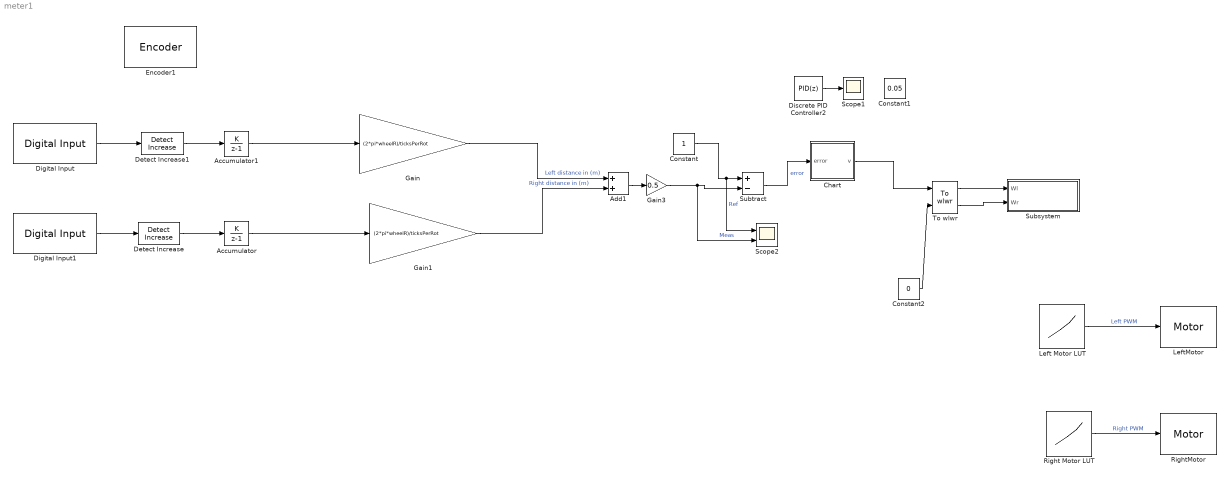
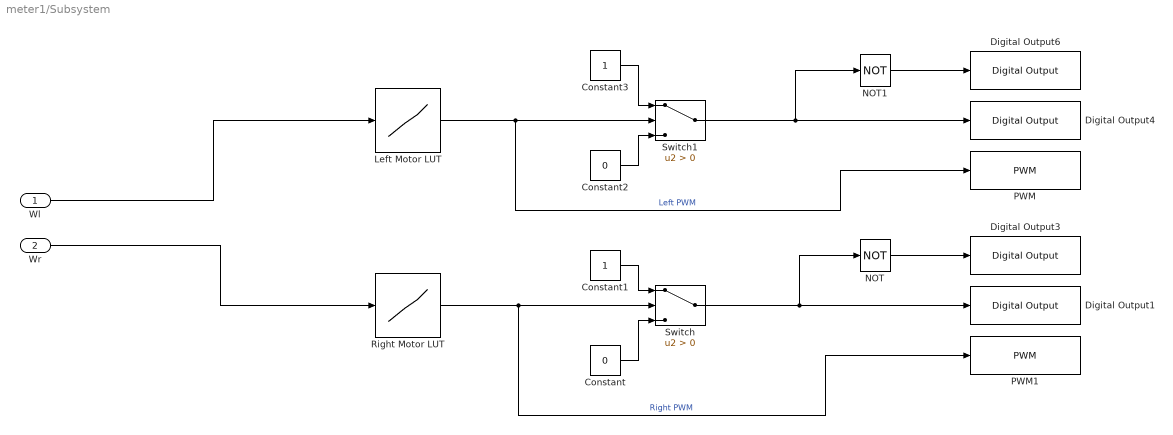
== stateflow chart meter1/Chart ==
  state StartVelocity
    entry:
    v= 0.1
  state ApproachVelocity
    entry:
    v = 0.04
  state Stop
    entry:
    v=0
  (default) -> StartVelocity
  StartVelocity -> ApproachVelocity : [error <0.15]
  ApproachVelocity -> Stop : [error <= 0]
  data: error input; v output

/*
 * meter1.c
 *
 * Academic License - for use in teaching, academic research, and meeting
 * course requirements at degree granting institutions only.  Not for
 * government, commercial, or other organizational use.
 *
 * Code generation for model "meter1".
 *
 * Model version              : 5.25
 * Simulink Coder version : 9.9 (R2023a) 19-Nov-2022
 * C source code generated on : Tue Oct 10 23:23:02 2023
 *
 * Target selection: ert.tlc
 * Note: GRT includes extra infrastructure and instrumentation for prototyping
 * Embedded hardware selection: ARM Compatible->ARM Cortex
 * Code generation objectives: Unspecified
 * Validation result: Not run
 */

#include "meter1.h"
#include "rtwtypes.h"
#include "meter1_types.h"
#include "meter1_private.h"
#include <math.h>
#include <string.h>

/* Named constants for Chart: '<Root>/Chart' */
#define meter1_IN_ApproachVelocity     ((uint8_T)1U)
#define meter1_IN_NO_ACTIVE_CHILD      ((uint8_T)0U)
#define meter1_IN_StartVelocity        ((uint8_T)2U)
#define meter1_IN_Stop                 ((uint8_T)3U)

/* Block states (default storage) */
DW_meter1_T meter1_DW;

/* Real-time model */
static RT_MODEL_meter1_T meter1_M_;
RT_MODEL_meter1_T *const meter1_M = &meter1_M_;
static void rate_scheduler(void);
uint32_T plook_u32d_binckan(real_T u, const real_T bp[], uint32_T maxIndex)
{
  uint32_T bpIndex;

  /* Prelookup - Index only
     Index Search method: 'binary'
     Interpolation method: 'Use nearest'
     Extrapolation method: 'Clip'
     Use previous index: 'off'
     Use last breakpoint for index at or above upper limit: 'on'
     Remove protection against out-of-range input in generated code: 'off'
   */
  if (u <= bp[0U]) {
    bpIndex = 0U;
  } else if (u < bp[maxIndex]) {
    bpIndex = binsearch_u32d(u, bp, maxIndex >> 1U, maxIndex);
    if ((bpIndex < maxIndex) && (bp[bpIndex + 1U] - u <= u - bp[bpIndex])) {
      bpIndex++;
    }
  } else {
    bpIndex = maxIndex;
  }

  return bpIndex;
}

uint32_T binsearch_u32d(real_T u, const real_T bp[], uint32_T startIndex,
  uint32_T maxIndex)
{
  uint32_T bpIdx;
  uint32_T bpIndex;
  uint32_T iRght;

  /* Binary Search */
  bpIdx = startIndex;
  bpIndex = 0U;
  iRght = maxIndex;
  while (iRght - bpIndex > 1U) {
    if (u < bp[bpIdx]) {
      iRght = bpIdx;
    } else {
      bpIndex = bpIdx;
    }

    bpIdx = (iRght + bpIndex) >> 1U;
  }

  return bpIndex;
}

/*
 *         This function updates active task flag for each subrate.
 *         The function is called at model base rate, hence the
 *         generated code self-manages all its subrates.
 */
static void rate_scheduler(void)
{
  /* Compute which subrates run during the next base time step.  Subrates
   * are an integer multiple of the base rate counter.  Therefore, the subtask
   * counter is reset when it reaches its limit (zero means run).
   */
  (meter1_M->Timing.TaskCounters.TID[1])++;
  if ((meter1_M->Timing.TaskCounters.TID[1]) > 9) {/* Sample time: [0.1s, 0.0s] */
    meter1_M->Timing.TaskCounters.TID[1] = 0;
  }
}

real_T rt_roundd_snf(real_T u)
{
  real_T y;
  if (fabs(u) < 4.503599627370496E+15) {
    if (u >= 0.5) {
      y = floor(u + 0.5);
    } else if (u > -0.5) {
      y = u * 0.0;
    } else {
      y = ceil(u - 0.5);
    }
  } else {
    y = u;
  }

  return y;
}

/* Model step function */
void meter1_step(void)
{
  codertarget_arduinobase_inter_T *obj;
  real_T rtb_LeftPWM;
  real_T rtb_Switch1;
  real_T rtb_error;
  real_T rtb_v;
  real_T tmp;
  uint32_T rtb_Meas;
  int8_T tmp_0;
  int8_T tmp_1;
  uint8_T tmp_2;
  boolean_T rtb_DigitalInput;
  boolean_T rtb_DigitalInput1;
  if (meter1_M->Timing.TaskCounters.TID[1] == 0) {
    /* Gain: '<Root>/Gain3' incorporates:
     *  DiscreteIntegrator: '<Root>/Accumulator'
     *  DiscreteIntegrator: '<Root>/Accumulator1'
     *  Gain: '<Root>/Gain'
     *  Gain: '<Root>/Gain1'
     *  Sum: '<Root>/Add1'
     */
    rtb_Meas = (uint32_T)(uint16_T)((uint32_T)meter1_P.Gain_Gain *
      meter1_DW.Accumulator1_DSTATE + (uint32_T)meter1_P.Gain1_Gain *
      meter1_DW.Accumulator_DSTATE) * meter1_P.Gain3_Gain;

    /* Sum: '<Root>/Subtract' incorporates:
     *  Constant: '<Root>/Constant'
     *  Gain: '<Root>/Gain3'
     */
    rtb_error = meter1_P.Constant_Value_h - (real_T)rtb_Meas *
      9.3132257461547852E-10;

    /* Chart: '<Root>/Chart' */
    if (meter1_DW.is_active_c3_meter1 == 0U) {
      meter1_DW.is_active_c3_meter1 = 1U;
      meter1_DW.is_c3_meter1 = meter1_IN_StartVelocity;
      rtb_v = 0.1;
    } else {
      switch (meter1_DW.is_c3_meter1) {
       case meter1_IN_ApproachVelocity:
        rtb_v = 0.04;
        if (rtb_error <= 0.0) {
          meter1_DW.is_c3_meter1 = meter1_IN_Stop;
          rtb_v = 0.0;
        }
        break;

       case meter1_IN_StartVelocity:
        rtb_v = 0.1;
        if (rtb_error < 0.15) {
          meter1_DW.is_c3_meter1 = meter1_IN_ApproachVelocity;
          rtb_v = 0.04;
        }
        break;

       default:
        /* case IN_Stop: */
        rtb_v = 0.0;
        break;
      }
    }

    /* End of Chart: '<Root>/Chart' */

    /* Gain: '<S9>/vtow' */
    rtb_error = 1.0 / meter1_P.wheelR;

    /* Lookup_n-D: '<S8>/Left Motor LUT' incorporates:
     *  Constant: '<Root>/Constant2'
     *  Gain: '<S9>/change parameters'
     *  Gain: '<S9>/vtow'
     *  SignalConversion generated from: '<S9>/change parameters'
     */
    rtb_LeftPWM = meter1_P.InputPWM[plook_u32d_binckan
      ((meter1_P.changeparameters_Gain[0] * rtb_v +
        meter1_P.changeparameters_Gain[2] * meter1_P.Constant2_Value_c) *
       rtb_error, meter1_P.WheelSpeed, 172U)];

    /* Switch: '<S8>/Switch1' incorporates:
     *  Constant: '<S8>/Constant2'
     *  Constant: '<S8>/Constant3'
     */
    if (rtb_LeftPWM > meter1_P.Switch1_Threshold) {
      rtb_Switch1 = meter1_P.Constant3_Value;
    } else {
      rtb_Switch1 = meter1_P.Constant2_Value;
    }

    /* End of Switch: '<S8>/Switch1' */

    /* MATLABSystem: '<S8>/Digital Output4' */
    tmp = rt_roundd_snf(rtb_Switch1);
    if (tmp < 256.0) {
      if (tmp >= 0.0) {
        tmp_2 = (uint8_T)tmp;
      } else {
        tmp_2 = 0U;
      }
    } else {
      tmp_2 = MAX_uint8_T;
    }

    writeDigitalPin(13, tmp_2);

    /* End of MATLABSystem: '<S8>/Digital Output4' */

    /* MATLABSystem: '<S8>/Digital Output6' incorporates:
     *  Logic: '<S8>/NOT1'
     */
    writeDigitalPin(12, (uint8_T)!(rtb_Switch1 != 0.0));

    /* MATLABSystem: '<S8>/PWM' */
    obj = &meter1_DW.obj_i;
    obj->PWMDriverObj.MW_PWM_HANDLE = MW_PWM_GetHandle(9U);
    if (!(rtb_LeftPWM <= 255.0)) {
      rtb_LeftPWM = 255.0;
    }

    if (!(rtb_LeftPWM >= 0.0)) {
      rtb_LeftPWM = 0.0;
    }

    MW_PWM_SetDutyCycle(meter1_DW.obj_i.PWMDriverObj.MW_PWM_HANDLE, rtb_LeftPWM);

    /* End of MATLABSystem: '<S8>/PWM' */

    /* Lookup_n-D: '<S8>/Right Motor LUT' incorporates:
     *  Constant: '<Root>/Constant2'
     *  Gain: '<S9>/change parameters'
     *  Gain: '<S9>/vtow'
     *  SignalConversion generated from: '<S9>/change parameters'
     */
    rtb_v = meter1_P.InputPWM[plook_u32d_binckan
      ((meter1_P.changeparameters_Gain[1] * rtb_v +
        meter1_P.changeparameters_Gain[3] * meter1_P.Constant2_Value_c) *
       rtb_error, meter1_P.WheelSpeed, 172U)];

    /* Switch: '<S8>/Switch' incorporates:
     *  Constant: '<S8>/Constant'
     *  Constant: '<S8>/Constant1'
     */
    if (rtb_v > meter1_P.Switch_Threshold) {
      rtb_LeftPWM = meter1_P.Constant1_Value;
    } else {
      rtb_LeftPWM = meter1_P.Constant_Value;
    }

    /* End of Switch: '<S8>/Switch' */

    /* MATLABSystem: '<S8>/Digital Output1' */
    rtb_error = rt_roundd_snf(rtb_LeftPWM);
    if (rtb_error < 256.0) {
      if (rtb_error >= 0.0) {
        tmp_2 = (uint8_T)rtb_error;
      } else {
        tmp_2 = 0U;
      }
    } else {
      tmp_2 = MAX_uint8_T;
    }

    writeDigitalPin(8, tmp_2);

    /* End of MATLABSystem: '<S8>/Digital Output1' */

    /* MATLABSystem: '<S8>/Digital Output3' incorporates:
     *  Logic: '<S8>/NOT'
     */
    writeDigitalPin(11, (uint8_T)!(rtb_LeftPWM != 0.0));

    /* MATLABSystem: '<S8>/PWM1' */
    obj = &meter1_DW.obj_ez;
    obj->PWMDriverObj.MW_PWM_HANDLE = MW_PWM_GetHandle(10U);
    if (!(rtb_v <= 255.0)) {
      rtb_v = 255.0;
    }

    if (!(rtb_v >= 0.0)) {
      rtb_v = 0.0;
    }

    MW_PWM_SetDutyCycle(meter1_DW.obj_ez.PWMDriverObj.MW_PWM_HANDLE, rtb_v);

    /* End of MATLABSystem: '<S8>/PWM1' */
  }

  /* Gain: '<S40>/Integral Gain' */
  rtb_error = meter1_P.DiscretePIDController2_I * 0.0;

  /* Gain: '<S46>/Filter Coefficient' incorporates:
   *  DiscreteIntegrator: '<S38>/Filter'
   *  Gain: '<S37>/Derivative Gain'
   *  Sum: '<S38>/SumD'
   */
  rtb_v = (meter1_P.DiscretePIDController2_D * 0.0 - meter1_DW.Filter_DSTATE) *
    meter1_P.DiscretePIDController2_N;

  /* Sum: '<S52>/Sum' incorporates:
   *  DiscreteIntegrator: '<S43>/Integrator'
   *  Gain: '<S48>/Proportional Gain'
   */
  rtb_LeftPWM = (meter1_P.DiscretePIDController2_P * 0.0 +
                 meter1_DW.Integrator_DSTATE) + rtb_v;

  /* DeadZone: '<S36>/DeadZone' incorporates:
   *  Saturate: '<S50>/Saturation'
   */
  if (rtb_LeftPWM > meter1_P.DiscretePIDController2_UpperSat) {
    rtb_Switch1 = rtb_LeftPWM - meter1_P.DiscretePIDController2_UpperSat;
    rtb_LeftPWM = meter1_P.DiscretePIDController2_UpperSat;
  } else {
    if (rtb_LeftPWM >= meter1_P.DiscretePIDController2_LowerSat) {
      rtb_Switch1 = 0.0;
    } else {
      rtb_Switch1 = rtb_LeftPWM - meter1_P.DiscretePIDController2_LowerSat;
    }

    if (rtb_LeftPWM < meter1_P.DiscretePIDController2_LowerSat) {
      rtb_LeftPWM = meter1_P.DiscretePIDController2_LowerSat;
    }
  }

  /* End of DeadZone: '<S36>/DeadZone' */
  if (meter1_M->Timing.TaskCounters.TID[1] == 0) {
    /* MATLABSystem: '<Root>/Digital Input1' */
    if (meter1_DW.obj.SampleTime != meter1_P.DigitalInput1_SampleTime) {
      meter1_DW.obj.SampleTime = meter1_P.DigitalInput1_SampleTime;
    }

    rtb_DigitalInput1 = readDigitalPin(3);

    /* MATLABSystem: '<Root>/Digital Input' */
    if (meter1_DW.obj_p.SampleTime != meter1_P.DigitalInput_SampleTime) {
      meter1_DW.obj_p.SampleTime = meter1_P.DigitalInput_SampleTime;
    }

    rtb_DigitalInput = readDigitalPin(2);

    /* Update for DiscreteIntegrator: '<Root>/Accumulator1' incorporates:
     *  MATLABSystem: '<Root>/Digital Input'
     *  RelationalOperator: '<S3>/FixPt Relational Operator'
     *  UnitDelay: '<S3>/Delay Input1'
     */
    meter1_DW.Accumulator1_DSTATE = (uint8_T)((uint32_T)((int32_T)
      rtb_DigitalInput > (int32_T)meter1_DW.DelayInput1_DSTATE_m) +
      meter1_DW.Accumulator1_DSTATE);

    /* Update for DiscreteIntegrator: '<Root>/Accumulator' incorporates:
     *  MATLABSystem: '<Root>/Digital Input1'
     *  RelationalOperator: '<S2>/FixPt Relational Operator'
     *  UnitDelay: '<S2>/Delay Input1'
     */
    meter1_DW.Accumulator_DSTATE = (uint8_T)((uint32_T)((int32_T)
      rtb_DigitalInput1 > (int32_T)meter1_DW.DelayInput1_DSTATE) +
      meter1_DW.Accumulator_DSTATE);
  }

  /* Switch: '<S34>/Switch1' incorporates:
   *  Constant: '<S34>/Clamping_zero'
   *  Constant: '<S34>/Constant'
   *  Constant: '<S34>/Constant2'
   *  RelationalOperator: '<S34>/fix for DT propagation issue'
   */
  if (rtb_Switch1 > meter1_P.Clamping_zero_Value) {
    tmp_0 = meter1_P.Constant_Value_f;
  } else {
    tmp_0 = meter1_P.Constant2_Value_o;
  }

  /* Switch: '<S34>/Switch2' incorporates:
   *  Constant: '<S34>/Clamping_zero'
   *  Constant: '<S34>/Constant3'
   *  Constant: '<S34>/Constant4'
   *  RelationalOperator: '<S34>/fix for DT propagation issue1'
   */
  if (rtb_error > meter1_P.Clamping_zero_Value) {
    tmp_1 = meter1_P.Constant3_Value_m;
  } else {
    tmp_1 = meter1_P.Constant4_Value;
  }

  /* Switch: '<S34>/Switch' incorporates:
   *  Constant: '<S34>/Clamping_zero'
   *  Constant: '<S34>/Constant1'
   *  Logic: '<S34>/AND3'
   *  RelationalOperator: '<S34>/Equal1'
   *  RelationalOperator: '<S34>/Relational Operator'
   *  Switch: '<S34>/Switch1'
   *  Switch: '<S34>/Switch2'
   */
  if ((meter1_P.Clamping_zero_Value != rtb_Switch1) && (tmp_0 == tmp_1)) {
    rtb_error = meter1_P.Constant1_Value_i;
  }

  /* Update for DiscreteIntegrator: '<S43>/Integrator' incorporates:
   *  Switch: '<S34>/Switch'
   */
  meter1_DW.Integrator_DSTATE += meter1_P.Integrator_gainval * rtb_error;

  /* Update for DiscreteIntegrator: '<S38>/Filter' */
  meter1_DW.Filter_DSTATE += meter1_P.Filter_gainval * rtb_v;
  if (meter1_M->Timing.TaskCounters.TID[1] == 0) {
    /* Update for UnitDelay: '<S2>/Delay Input1' */
    meter1_DW.DelayInput1_DSTATE = rtb_DigitalInput1;

    /* Update for UnitDelay: '<S3>/Delay Input1' */
    meter1_DW.DelayInput1_DSTATE_m = rtb_DigitalInput;
  }

  rate_scheduler();
}
